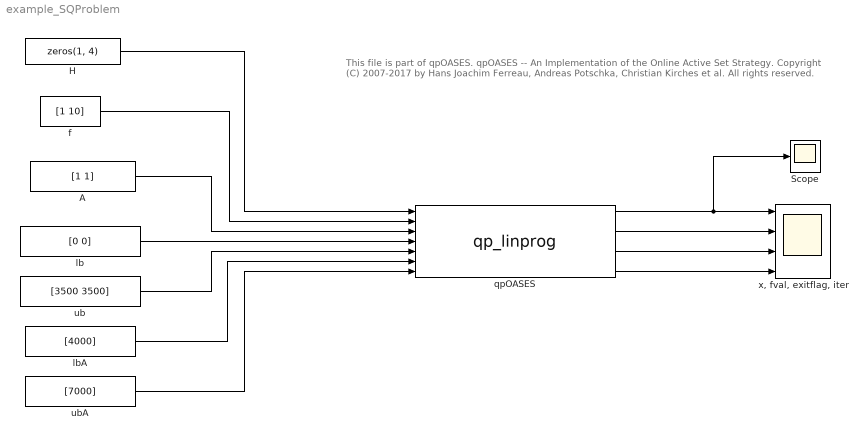
/*
 * File: example_SQProblem.c
 *
 * Code generated for Simulink model 'example_SQProblem'.
 *
 * Model version                  : 1.75
 * Simulink Coder version         : 8.12 (R2017a) 16-Feb-2017
 * C/C++ source code generated on : Tue Jul 10 15:08:03 2018
 *
 * Target selection: ert.tlc
 * Embedded hardware selection: Intel->x86-64 (Windows64)
 * Code generation objectives: Unspecified
 * Validation result: Not run
 */

#include "example_SQProblem.h"
#include "example_SQProblem_private.h"

/* Block signals (auto storage) */
B_example_SQProblem_T example_SQProblem_B;

/* Block states (auto storage) */
DW_example_SQProblem_T example_SQProblem_DW;

/* Real-time model */
RT_MODEL_example_SQProblem_T example_SQProblem_M_;
RT_MODEL_example_SQProblem_T *const example_SQProblem_M = &example_SQProblem_M_;

/* Model step function */
void example_SQProblem_step(void)
{
  /* S-Function (qp_linprog): '<Root>/qpOASES' incorporates:
   *  Constant: '<Root>/A'
   *  Constant: '<Root>/H'
   *  Constant: '<Root>/f'
   *  Constant: '<Root>/lb'
   *  Constant: '<Root>/lbA'
   *  Constant: '<Root>/ub'
   *  Constant: '<Root>/ubA'
   */

  /* Level2 S-Function Block: '<Root>/qpOASES' (qp_linprog) */
  {
    SimStruct *rts = example_SQProblem_M->childSfunctions[0];
    sfcnOutputs(rts,0);
  }

  /* Update absolute time for base rate */
  /* The "clockTick0" counts the number of times the code of this task has
   * been executed. The absolute time is the multiplication of "clockTick0"
   * and "Timing.stepSize0". Size of "clockTick0" ensures timer will not
   * overflow during the application lifespan selected.
   */
  example_SQProblem_M->Timing.t[0] =
    (++example_SQProblem_M->Timing.clockTick0) *
    example_SQProblem_M->Timing.stepSize0;
}
